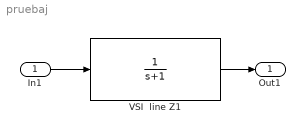
/*
 * File: pruebaj.c
 *
 * Code generated for Simulink model 'pruebaj'.
 *
 * Model version                  : 1.71
 * Simulink Coder version         : 8.12 (R2017a) 16-Feb-2017
 * C/C++ source code generated on : Mon Sep 17 15:21:19 2018
 *
 * Target selection: ert.tlc
 * Embedded hardware selection: Intel->x86-64 (Windows64)
 * Code generation objectives: Unspecified
 * Validation result: Not run
 */

#include "pruebaj.h"
#include "pruebaj_private.h"

/* Continuous states */
X_pruebaj_T pruebaj_X;

/* External inputs (root inport signals with auto storage) */
ExtU_pruebaj_T pruebaj_U;

/* External outputs (root outports fed by signals with auto storage) */
ExtY_pruebaj_T pruebaj_Y;

/* Real-time model */
RT_MODEL_pruebaj_T pruebaj_M_;
RT_MODEL_pruebaj_T *const pruebaj_M = &pruebaj_M_;

/*
 * This function updates continuous states using the ODE4 fixed-step
 * solver algorithm
 */
static void rt_ertODEUpdateContinuousStates(RTWSolverInfo *si )
{
  time_T t = rtsiGetT(si);
  time_T tnew = rtsiGetSolverStopTime(si);
  time_T h = rtsiGetStepSize(si);
  real_T *x = rtsiGetContStates(si);
  ODE4_IntgData *id = (ODE4_IntgData *)rtsiGetSolverData(si);
  real_T *y = id->y;
  real_T *f0 = id->f[0];
  real_T *f1 = id->f[1];
  real_T *f2 = id->f[2];
  real_T *f3 = id->f[3];
  real_T temp;
  int_T i;
  int_T nXc = 1;
  rtsiSetSimTimeStep(si,MINOR_TIME_STEP);

  /* Save the state values at time t in y, we'll use x as ynew. */
  (void) memcpy(y, x,
                (uint_T)nXc*sizeof(real_T));

  /* Assumes that rtsiSetT and ModelOutputs are up-to-date */
  /* f0 = f(t,y) */
  rtsiSetdX(si, f0);
  pruebaj_derivatives();

  /* f1 = f(t + (h/2), y + (h/2)*f0) */
  temp = 0.5 * h;
  for (i = 0; i < nXc; i++) {
    x[i] = y[i] + (temp*f0[i]);
  }

  rtsiSetT(si, t + temp);
  rtsiSetdX(si, f1);
  pruebaj_step();
  pruebaj_derivatives();

  /* f2 = f(t + (h/2), y + (h/2)*f1) */
  for (i = 0; i < nXc; i++) {
    x[i] = y[i] + (temp*f1[i]);
  }

  rtsiSetdX(si, f2);
  pruebaj_step();
  pruebaj_derivatives();

  /* f3 = f(t + h, y + h*f2) */
  for (i = 0; i < nXc; i++) {
    x[i] = y[i] + (h*f2[i]);
  }

  rtsiSetT(si, tnew);
  rtsiSetdX(si, f3);
  pruebaj_step();
  pruebaj_derivatives();

  /* tnew = t + h
     ynew = y + (h/6)*(f0 + 2*f1 + 2*f2 + 2*f3) */
  temp = h / 6.0;
  for (i = 0; i < nXc; i++) {
    x[i] = y[i] + temp*(f0[i] + 2.0*f1[i] + 2.0*f2[i] + f3[i]);
  }

  rtsiSetSimTimeStep(si,MAJOR_TIME_STEP);
}

/* Model step function */
void pruebaj_step(void)
{
  if (rtmIsMajorTimeStep(pruebaj_M)) {
    /* set solver stop time */
    rtsiSetSolverStopTime(&pruebaj_M->solverInfo,((pruebaj_M->Timing.clockTick0+
      1)*pruebaj_M->Timing.stepSize0));
  }                                    /* end MajorTimeStep */

  /* Update absolute time of base rate at minor time step */
  if (rtmIsMinorTimeStep(pruebaj_M)) {
    pruebaj_M->Timing.t[0] = rtsiGetT(&pruebaj_M->solverInfo);
  }

  /* Outport: '<Root>/Out1' incorporates:
   *  TransferFcn: '<Root>/VSI  line Z1'
   */
  pruebaj_Y.Out1 = pruebaj_X.VSIlineZ1_CSTATE;
  if (rtmIsMajorTimeStep(pruebaj_M)) {
    rt_ertODEUpdateContinuousStates(&pruebaj_M->solverInfo);

    /* Update absolute time for base rate */
    /* The "clockTick0" counts the number of times the code of this task has
     * been executed. The absolute time is the multiplication of "clockTick0"
     * and "Timing.stepSize0". Size of "clockTick0" ensures timer will not
     * overflow during the application lifespan selected.
     */
    ++pruebaj_M->Timing.clockTick0;
    pruebaj_M->Timing.t[0] = rtsiGetSolverStopTime(&pruebaj_M->solverInfo);

    {
      /* Update absolute timer for sample time: [0.0001s, 0.0s] */
      /* The "clockTick1" counts the number of times the code of this task has
       * been executed. The resolution of this integer timer is 0.0001, which is the step size
       * of the task. Size of "clockTick1" ensures timer will not overflow during the
       * application lifespan selected.
       */
      pruebaj_M->Timing.clockTick1++;
    }
  }                                    /* end MajorTimeStep */
}
